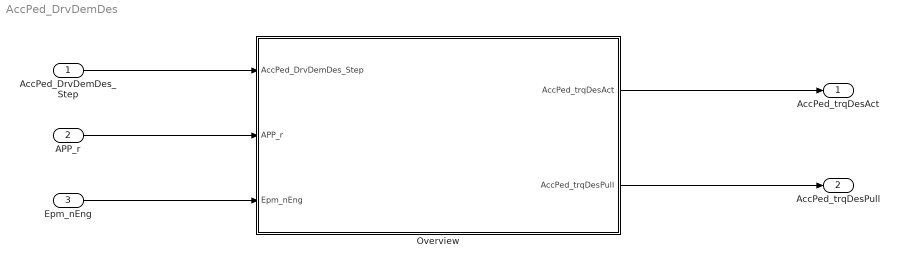
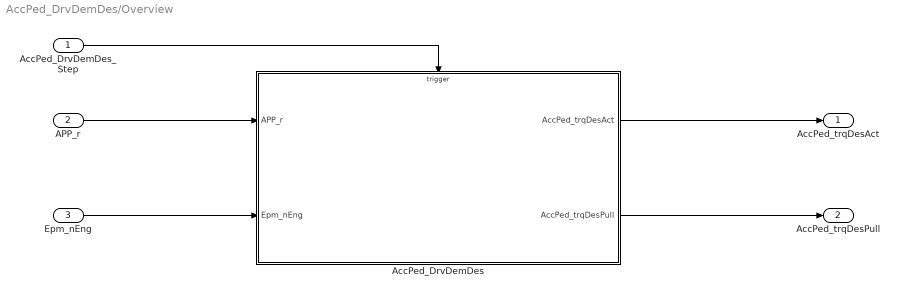
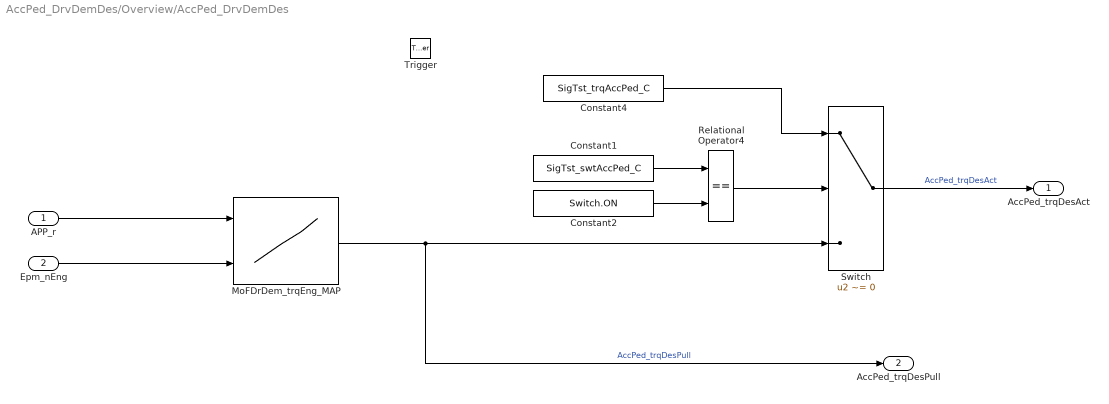
/*
 * File: AccPed_DrvDemDes.c
 *
 * Code generated for Simulink model 'AccPed_DrvDemDes'.
 *
 * Model version                  : 1.56
 * Simulink Coder version         : 9.4 (R2020b) 29-Jul-2020
 * C/C++ source code generated on : Thu Feb  4 09:43:37 2021
 *
 * Target selection: ert.tlc
 * Embedded hardware selection: ARM Compatible->ARM Cortex
 * Code generation objectives: Unspecified
 * Validation result: Not run
 */

#include "AccPed_DrvDemDes.h"
#include "look2_is16s16lu16n16ts_XfzHng1h.h"
#ifndef UCHAR_MAX
#include <limits.h>
#endif

#if ( UCHAR_MAX != (0xFFU) ) || ( SCHAR_MAX != (0x7F) )
#error Code was generated for compiler with different sized uchar/char. \
Consider adjusting Test hardware word size settings on the \
Hardware Implementation pane to match your compiler word sizes as \
defined in limits.h of the compiler. Alternatively, you can \
select the Test hardware is the same as production hardware option and \
select the Enable portable word sizes option on the Code Generation > \
Verification pane for ERT based targets, which will disable the \
preprocessor word size checks.
#endif

#if ( USHRT_MAX != (0xFFFFU) ) || ( SHRT_MAX != (0x7FFF) )
#error Code was generated for compiler with different sized ushort/short. \
Consider adjusting Test hardware word size settings on the \
Hardware Implementation pane to match your compiler word sizes as \
defined in limits.h of the compiler. Alternatively, you can \
select the Test hardware is the same as production hardware option and \
select the Enable portable word sizes option on the Code Generation > \
Verification pane for ERT based targets, which will disable the \
preprocessor word size checks.
#endif

#if ( UINT_MAX != (0xFFFFFFFFU) ) || ( INT_MAX != (0x7FFFFFFF) )
#error Code was generated for compiler with different sized uint/int. \
Consider adjusting Test hardware word size settings on the \
Hardware Implementation pane to match your compiler word sizes as \
defined in limits.h of the compiler. Alternatively, you can \
select the Test hardware is the same as production hardware option and \
select the Enable portable word sizes option on the Code Generation > \
Verification pane for ERT based targets, which will disable the \
preprocessor word size checks.
#endif

#if ( ULONG_MAX != (0xFFFFFFFFU) ) || ( LONG_MAX != (0x7FFFFFFF) )
#error Code was generated for compiler with different sized ulong/long. \
Consider adjusting Test hardware word size settings on the \
Hardware Implementation pane to match your compiler word sizes as \
defined in limits.h of the compiler. Alternatively, you can \
select the Test hardware is the same as production hardware option and \
select the Enable portable word sizes option on the Code Generation > \
Verification pane for ERT based targets, which will disable the \
preprocessor word size checks.
#endif

/* Exported block signals */
Torq AccPed_trqDesPull;                /* '<S2>/MoFDrDem_trqEng_MAP'
                                        * Application parameter for driver demand in pull mode for desired value
                                        */
Torq AccPed_trqDesAct;                 /* '<S2>/Switch'
                                        * driver torque raw of propulsion
                                        */

/* Block states (default storage) */
DW_AccPed_DrvDemDes_T AccPed_DrvDemDes_DW;

/* Real-time model */
static RT_MODEL_AccPed_DrvDemDes_T AccPed_DrvDemDes_M_;
RT_MODEL_AccPed_DrvDemDes_T *const AccPed_DrvDemDes_M = &AccPed_DrvDemDes_M_;
extern const uint32_T rtCP_pooled_yar37CiNRVua[2];

#define rtCP_MoFDrDem_trqEng_MAP_maxInd rtCP_pooled_yar37CiNRVua /* Computed Parameter: rtCP_MoFDrDem_trqEng_MAP_maxInd
                                                                  * Referenced by: '<S2>/MoFDrDem_trqEng_MAP'
                                                                  */

/* Model step function */
void AccPed_DrvDemDes_Step(void)
{
  /* RootInportFunctionCallGenerator generated from: '<Root>/AccPed_DrvDemDes_Step' incorporates:
   *  SubSystem: '<S1>/AccPed_DrvDemDes'
   */
  /* Lookup_n-D: '<S2>/MoFDrDem_trqEng_MAP' incorporates:
   *  Inport: '<Root>/APP_r'
   *  Inport: '<Root>/Epm_nEng'
   *
   * Block description for '<Root>/APP_r':
   *  Acceleration pedal sensor 1 value after fault handling
   *
   * Block description for '<Root>/Epm_nEng':
   *  Engine speed
   */
  AccPed_trqDesPull = look2_is16s16lu16n16ts_XfzHng1h(APP_r, Epm_nEng, ((const
    Percent *)&(MoFDrDem_trqEng_MAPY[0])), ((const ERPM *)
    &(MoFDrDem_trqEng_MAPX[0])), ((const Torq *)&(MoFDrDem_trqEng_MAP[0])),
    AccPed_DrvDemDes_DW.m_bpIndex, rtCP_MoFDrDem_trqEng_MAP_maxInd, 16U);

  /* Switch: '<S2>/Switch' incorporates:
   *  Constant: '<S2>/Constant1'
   *  Constant: '<S2>/Constant2'
   *  RelationalOperator: '<S2>/Relational Operator4'
   */
  if (SigTst_swtAccPed_C == Switch_ON) {
    /* Switch: '<S2>/Switch' incorporates:
     *  Constant: '<S2>/Constant4'
     */
    AccPed_trqDesAct = SigTst_trqAccPed_C;
  } else {
    /* Switch: '<S2>/Switch' incorporates:
     *  Lookup_n-D: '<S2>/MoFDrDem_trqEng_MAP'
     */
    AccPed_trqDesAct = AccPed_trqDesPull;
  }

  /* End of Switch: '<S2>/Switch' */
  /* End of Outputs for RootInportFunctionCallGenerator generated from: '<Root>/AccPed_DrvDemDes_Step' */
}
